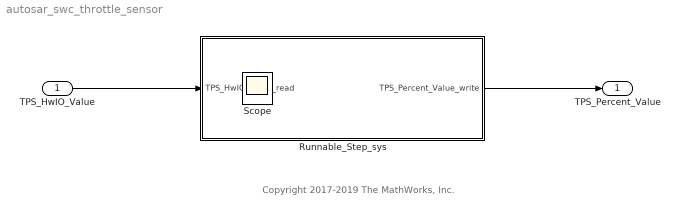
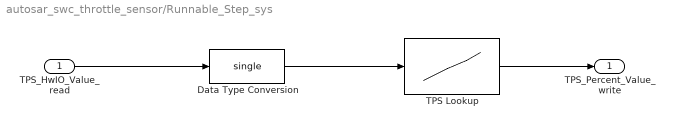
/*
 * File: autosar_swc_throttle_sensor.c
 *
 * Code generated for Simulink model 'autosar_swc_throttle_sensor'.
 *
 * Model version                  : 3.13
 * Simulink Coder version         : 9.5 (R2021a) 14-Nov-2020
 * C/C++ source code generated on : Sat Aug  9 15:14:12 2025
 *
 * Target selection: autosar.tlc
 * Embedded hardware selection: Intel->x86-64 (Windows64)
 * Code generation objectives: Unspecified
 * Validation result: Not run
 */

#include "autosar_swc_throttle_sensor.h"
#include "autosar_swc_throttle_sensor_private.h"

float32 look1_iflf_linlcpw(float32 u0, const float32 bp0[], const float32 table[],
  uint32 maxIndex)
{
  float32 frac;
  float32 yL_0d0;
  uint32 bpIdx;

  /* Column-major Lookup 1-D
     Search method: 'linear'
     Use previous index: 'off'
     Interpolation method: 'Linear point-slope'
     Extrapolation method: 'Clip'
     Use last breakpoint for index at or above upper limit: 'off'
     Remove protection against out-of-range input in generated code: 'off'
   */
  /* Prelookup - Index and Fraction
     Index Search method: 'linear'
     Extrapolation method: 'Clip'
     Use previous index: 'off'
     Use last breakpoint for index at or above upper limit: 'off'
     Remove protection against out-of-range input in generated code: 'off'
   */
  if (u0 <= bp0[0U]) {
    bpIdx = 0U;
    frac = 0.0F;
  } else if (u0 < bp0[maxIndex]) {
    /* Linear Search */
    for (bpIdx = maxIndex >> 1U; u0 < bp0[bpIdx]; bpIdx--) {
    }

    while (u0 >= bp0[bpIdx + 1U]) {
      bpIdx++;
    }

    frac = (u0 - bp0[bpIdx]) / (bp0[bpIdx + 1U] - bp0[bpIdx]);
  } else {
    bpIdx = maxIndex - 1U;
    frac = 1.0F;
  }

  /* Column-major Interpolation 1-D
     Interpolation method: 'Linear point-slope'
     Use last breakpoint for index at or above upper limit: 'off'
     Overflow mode: 'portable wrapping'
   */
  yL_0d0 = table[bpIdx];
  return (table[bpIdx + 1U] - yL_0d0) * frac + yL_0d0;
}

/* Model step function */
void Runnable_Step(Rte_Instance self)
{
  sint32 rtb_DataTypeConversion;

  /* Outputs for Atomic SubSystem: '<Root>/Runnable_Step_sys' */
  /* DataTypeConversion: '<S1>/Data Type Conversion' incorporates:
   *  Inport: '<Root>/TPS_HwIO_Value'
   */
  rtb_DataTypeConversion = Rte_IRead_Runnable_Step_TPS_HwIO_Value(self);

  /* Outport: '<Root>/TPS_Percent_Value' incorporates:
   *  DataTypeConversion: '<S1>/Data Type Conversion'
   *  Lookup_n-D: '<S1>/TPS Lookup'
   */
  Rte_IWrite_Runnable_Step_TPS_Percent_Value(self, look1_iflf_linlcpw((float32)
    rtb_DataTypeConversion, autosar_swc_throttle_sen_ConstP.TPSLookup_bp01Data,
    autosar_swc_throttle_sen_ConstP.TPSLookup_tableData, 10U));

  /* End of Outputs for SubSystem: '<Root>/Runnable_Step_sys' */
}
